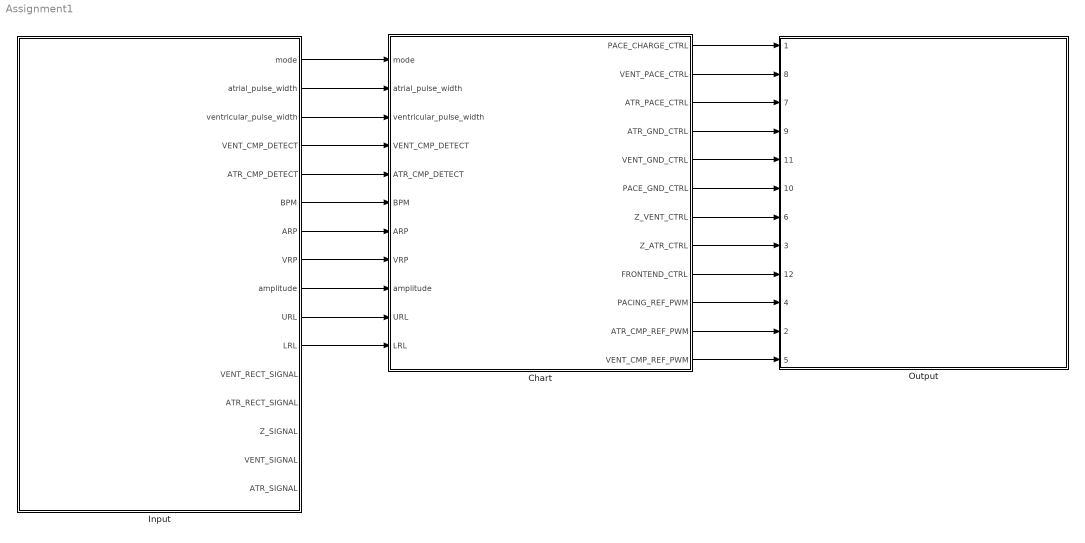
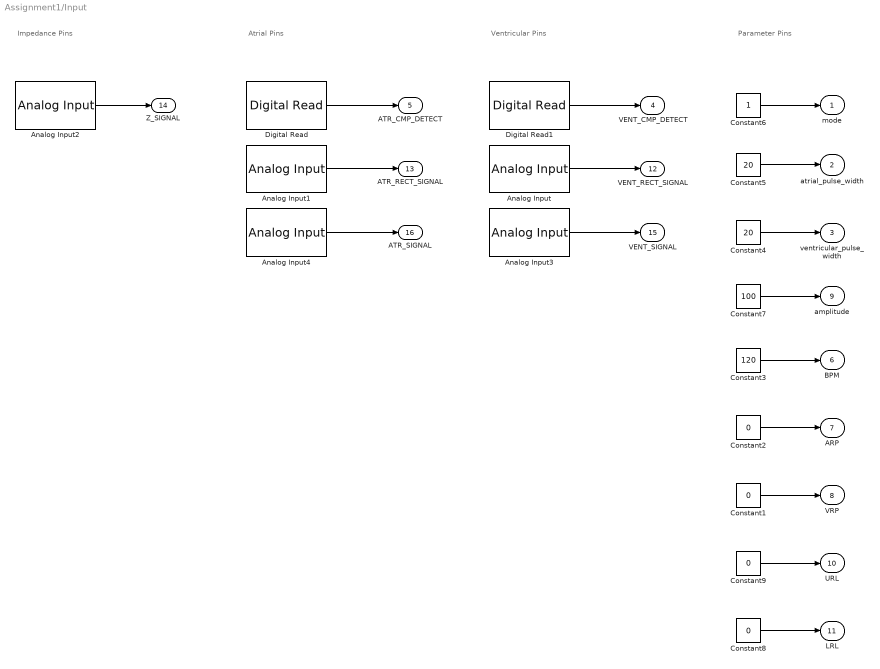
== stateflow chart Assignment1/Chart ==
  state AAI
    state delay
    state AOO_Charge
      entry:
      PACING_REF_PWM = amplitude;
      ATR_CMP_REF_PWM = 70;
      PACE_CHARGE_CTRL = 1;
      PACE_GND_CTRL = 1;
      ATR_PACE_CTRL = 0;
      ATR_GND_CTRL = 1;
      VENT_PACE_CTRL = 0;
      VENT_GND_CTRL = 0;
      Z_ATR_CTRL = 0;
      Z_VENT_CTRL =0;
      FRONTEND_CTRL = 0;
    state sense
      entry:
      FRONTEND_CTRL = 1;
    state Atrial_Pacing
      entry:
      PACING_REF_PWM = amplitude;
      ATR_CMP_REF_PWM = 70;
      PACE_CHARGE_CTRL = 0;
      PACE_GND_CTRL = 1;
      ATR_PACE_CTRL = 1;
      ATR_GND_CTRL = 0;
      VENT_PACE_CTRL = 0;
      VENT_GND_CTRL = 0;
      Z_ATR_CTRL = 0;
      Z_VENT_CTRL = 0;
    (default) -> AAI.AOO_Charge
    AAI.delay -> AAI.sense : [after(ARP,msec)]
    AAI.sense -> AAI.delay [order 1] : [ATR_CMP_DETECT == 1]
    AAI.AOO_Charge -> AAI.sense
    AAI.sense -> AAI.Atrial_Pacing [order 2] : [after((60000/BPM) - atrial_pulse_width + ARP,msec) && ATR_CMP_DETECT == 0]
    AAI.Atrial_Pacing -> AAI.AOO_Charge : [after(atrial_pulse_width,msec)]
  state VVI
    state delay
    state VVI_Charge
      entry:
      PACING_REF_PWM = amplitude;
      VENT_CMP_REF_PWM = 70;
      PACE_CHARGE_CTRL = 1;
      PACE_GND_CTRL = 1;
      ATR_PACE_CTRL = 0;
      ATR_GND_CTRL = 0;
      VENT_PACE_CTRL = 0;
      VENT_GND_CTRL = 1;
      Z_ATR_CTRL = 0;
      Z_VENT_CTRL =0;
    state sense
      entry:
      FRONTEND_CTRL = 1;
    state Ventricular_Pacing
      entry:
      PACING_REF_PWM = amplitude;
      VENT_CMP_REF_PWM = 70;
      PACE_CHARGE_CTRL = 0;
      PACE_GND_CTRL = 1;
      ATR_PACE_CTRL = 0;
      ATR_GND_CTRL = 0;
      Z_ATR_CTRL = 0;
      Z_VENT_CTRL = 0;
      VENT_PACE_CTRL = 1;
      VENT_GND_CTRL = 0;
    (default) -> VVI_Charge
    VVI.delay -> VVI.sense : [after(VRP,msec)]
    VVI.sense -> VVI.delay [order 1] : [VENT_CMP_DETECT == 1]
    VVI_Charge -> VVI.sense
    VVI.sense -> VVI.Ventricular_Pacing [order 2] : [after((60000/BPM) - ventricular_pulse_width + VRP + URL,msec) && VENT_CMP_DETECT == 0]
    VVI.Ventricular_Pacing -> VVI_Charge : [after(ventricular_pulse_width,msec)]
  state AOO
    state AOO_Charge
      entry:
      PACING_REF_PWM = amplitude;
      ATR_CMP_REF_PWM = 70;
      PACE_CHARGE_CTRL = 1;
      PACE_GND_CTRL = 1;
      ATR_PACE_CTRL = 0;
      ATR_GND_CTRL = 1;
      VENT_PACE_CTRL = 0;
      VENT_GND_CTRL = 0;
      Z_ATR_CTRL = 0;
      Z_VENT_CTRL =0;
      FRONTEND_CTRL = 0;
    state Atrial_Pacing
      entry:
      PACING_REF_PWM = amplitude;
      ATR_CMP_REF_PWM = 70;
      PACE_CHARGE_CTRL = 0;
      PACE_GND_CTRL = 1;
      ATR_PACE_CTRL = 1;
      ATR_GND_CTRL = 0;
      VENT_PACE_CTRL = 0;
      VENT_GND_CTRL = 0;
      Z_ATR_CTRL = 0;
      Z_VENT_CTRL = 0;
    (default) -> AOO.AOO_Charge
    AOO.AOO_Charge -> AOO.Atrial_Pacing : [after((60000/BPM) - atrial_pulse_width,msec)]
    AOO.Atrial_Pacing -> AOO.AOO_Charge : [after(atrial_pulse_width,msec)]
  state OFF
    entry:
    ATR_PACE_CTRL = 0;
    VENT_PACE_CTRL = 0;
  state VOO
    state VOO_Charge
      entry:
      PACING_REF_PWM = amplitude;
      VENT_CMP_REF_PWM = 70;
      PACE_CHARGE_CTRL = 1;
      PACE_GND_CTRL = 1;
      ATR_PACE_CTRL = 0;
      ATR_GND_CTRL = 0;
      VENT_PACE_CTRL = 0;
      VENT_GND_CTRL = 1;
      Z_ATR_CTRL = 0;
      Z_VENT_CTRL =0;
      FRONTEND_CTRL = 0;
    state Ventricular_Pacing
      entry:
      PACING_REF_PWM = amplitude;
      VENT_CMP_REF_PWM = 70;
      PACE_CHARGE_CTRL = 0;
      PACE_GND_CTRL = 1;
      ATR_PACE_CTRL = 0;
      ATR_GND_CTRL = 0;
      Z_ATR_CTRL = 0;
      Z_VENT_CTRL = 0;
      VENT_PACE_CTRL = 1;
      VENT_GND_CTRL = 0;
    (default) -> VOO_Charge
    VOO_Charge -> VOO.Ventricular_Pacing : [after((60000/BPM) - ventricular_pulse_width +LRL,msec)]
    VOO.Ventricular_Pacing -> VOO_Charge : [after(ventricular_pulse_width,msec)]
  AAI -> OFF : [mode ~= 3]
  OFF -> AAI [order 1] : [mode == 3]
  (default) -> OFF
  AOO -> OFF : [mode ~= 1]
  OFF -> VVI [order 3] : [mode == 4]
  OFF -> AOO [order 2] : [mode == 1]
  VVI -> OFF : [mode ~= 4]
  VOO -> OFF : [mode ~= 2]
  OFF -> VOO [order 4] : [mode == 2]
  data: PACE_CHARGE_CTRL output; VENT_PACE_CTRL output; ATR_PACE_CTRL output; ATR_GND_CTRL output; VENT_GND_CTRL output; PACE_GND_CTRL output; mode input; Z_VENT_CTRL output; Z_ATR_CTRL output; atrial_pulse_width input; ventricular_pulse_width input; VENT_CMP_DETECT input; ATR_CMP_DETECT input; FRONTEND_CTRL output; BPM input; PACING_REF_PWM output; ATR_CMP_REF_PWM output; VENT_CMP_REF_PWM output; ARP input; VRP input; amplitude input; URL input; LRL input

/*
 * Academic License - for use in teaching, academic research, and meeting
 * course requirements at degree granting institutions only.  Not for
 * government, commercial, or other organizational use.
 *
 * File: Assignment1.c
 *
 * Code generated for Simulink model 'Assignment1'.
 *
 * Model version                  : 1.48
 * Simulink Coder version         : 9.3 (R2020a) 18-Nov-2019
 * C/C++ source code generated on : Fri Oct 25 00:59:22 2024
 *
 * Target selection: ert.tlc
 * Embedded hardware selection: ARM Compatible->ARM Cortex
 * Code generation objectives: Unspecified
 * Validation result: Not run
 */

#include "Assignment1.h"
#include "Assignment1_private.h"

/* Named constants for Chart: '<Root>/Chart' */
#define Assignmen_IN_Ventricular_Pacing ((uint8_T)2U)
#define Assignment1_IN_AAI             ((uint8_T)1U)
#define Assignment1_IN_AOO             ((uint8_T)2U)
#define Assignment1_IN_AOO_Charge      ((uint8_T)1U)
#define Assignment1_IN_Atrial_Pacing   ((uint8_T)2U)
#define Assignment1_IN_NO_ACTIVE_CHILD ((uint8_T)0U)
#define Assignment1_IN_OFF             ((uint8_T)3U)
#define Assignment1_IN_VOO             ((uint8_T)4U)
#define Assignment1_IN_VOO_Charge      ((uint8_T)1U)
#define Assignment1_IN_VVI             ((uint8_T)5U)
#define Assignment1_IN_VVI_Charge      ((uint8_T)1U)
#define Assignment1_IN_delay           ((uint8_T)3U)
#define Assignment1_IN_sense           ((uint8_T)4U)

/* Block signals (default storage) */
B_Assignment1_T Assignment1_B;

/* Block states (default storage) */
DW_Assignment1_T Assignment1_DW;

/* Real-time model */
RT_MODEL_Assignment1_T Assignment1_M_;
RT_MODEL_Assignment1_T *const Assignment1_M = &Assignment1_M_;

/* Forward declaration for local functions */
static void Assignm_enter_atomic_AOO_Charge(void);
static void Assignment1_AAI(const boolean_T *DigitalRead);
static void Assignment1_AOO(void);
static void Assignm_enter_atomic_VOO_Charge(void);
static void Assign_SystemCore_release_j3b1w(const
  freedomk64f_DigitalRead_Assig_T *obj);
static void Assignm_SystemCore_delete_j3b1w(const
  freedomk64f_DigitalRead_Assig_T *obj);
static void matlabCodegenHandle_matla_j3b1w(freedomk64f_DigitalRead_Assig_T *obj);
static void Assi_SystemCore_release_j3b1wei(const
  freedomk64f_DigitalWrite_Assi_T *obj);
static void Assig_SystemCore_delete_j3b1wei(const
  freedomk64f_DigitalWrite_Assi_T *obj);
static void matlabCodegenHandle_mat_j3b1wei(freedomk64f_DigitalWrite_Assi_T *obj);
static void SystemCore_relea_j3b1wei5ggv3l5(const
  freedomk64f_PWMOutput_Assignm_T *obj);
static void SystemCore_delet_j3b1wei5ggv3l5(const
  freedomk64f_PWMOutput_Assignm_T *obj);
static void matlabCodegenHan_j3b1wei5ggv3l5(freedomk64f_PWMOutput_Assignm_T *obj);
static void Assignment1_SystemCore_release(const freedomk64f_AnalogInput_Assig_T
  *obj);
static void Assignment1_SystemCore_delete(const freedomk64f_AnalogInput_Assig_T *
  obj);
static void matlabCodegenHandle_matlabCodeg(freedomk64f_AnalogInput_Assig_T *obj);

/* Function for Chart: '<Root>/Chart' */
static void Assignm_enter_atomic_AOO_Charge(void)
{
  /* Constant: '<S2>/Constant7' */
  Assignment1_B.PACING_REF_PWM = Assignment1_P.Constant7_Value;
  Assignment1_B.ATR_CMP_REF_PWM = 70.0;
  Assignment1_B.PACE_CHARGE_CTRL = 1.0;
  Assignment1_B.PACE_GND_CTRL = 1.0;
  Assignment1_B.ATR_PACE_CTRL = 0.0;
  Assignment1_B.ATR_GND_CTRL = 1.0;
  Assignment1_B.VENT_PACE_CTRL = 0.0;
  Assignment1_B.VENT_GND_CTRL = 0.0;
  Assignment1_B.Z_ATR_CTRL = 0.0;
  Assignment1_B.Z_VENT_CTRL = 0.0;
  Assignment1_B.FRONTEND_CTRL = 0.0;
}

/* Function for Chart: '<Root>/Chart' */
static void Assignment1_AAI(const boolean_T *DigitalRead)
{
  boolean_T sf_internal_predicateOutput;

  /* Constant: '<S2>/Constant6' incorporates:
   *  Constant: '<S2>/Constant2'
   *  Constant: '<S2>/Constant3'
   *  Constant: '<S2>/Constant5'
   */
  if (Assignment1_P.Constant6_Value != 3.0) {
    Assignment1_DW.is_AAI = Assignment1_IN_NO_ACTIVE_CHILD;
    Assignment1_DW.is_c3_Assignment1 = Assignment1_IN_OFF;
    Assignment1_B.ATR_PACE_CTRL = 0.0;
    Assignment1_B.VENT_PACE_CTRL = 0.0;
  } else {
    switch (Assignment1_DW.is_AAI) {
     case Assignment1_IN_AOO_Charge:
      Assignment1_B.ATR_CMP_REF_PWM = 70.0;
      Assignment1_B.PACE_CHARGE_CTRL = 1.0;
      Assignment1_B.PACE_GND_CTRL = 1.0;
      Assignment1_B.ATR_PACE_CTRL = 0.0;
      Assignment1_B.ATR_GND_CTRL = 1.0;
      Assignment1_B.VENT_PACE_CTRL = 0.0;
      Assignment1_B.VENT_GND_CTRL = 0.0;
      Assignment1_B.Z_ATR_CTRL = 0.0;
      Assignment1_B.Z_VENT_CTRL = 0.0;
      Assignment1_DW.is_AAI = Assignment1_IN_sense;
      Assignment1_DW.temporalCounter_i1 = 0U;
      Assignment1_B.FRONTEND_CTRL = 1.0;
      break;

     case Assignment1_IN_Atrial_Pacing:
      Assignment1_B.ATR_CMP_REF_PWM = 70.0;
      Assignment1_B.PACE_CHARGE_CTRL = 0.0;
      Assignment1_B.PACE_GND_CTRL = 1.0;
      Assignment1_B.ATR_PACE_CTRL = 1.0;
      Assignment1_B.ATR_GND_CTRL = 0.0;
      Assignment1_B.VENT_PACE_CTRL = 0.0;
      Assignment1_B.VENT_GND_CTRL = 0.0;
      Assignment1_B.Z_ATR_CTRL = 0.0;
      Assignment1_B.Z_VENT_CTRL = 0.0;

      /* Constant: '<S2>/Constant5' */
      if (Assignment1_DW.temporalCounter_i1 >= (uint32_T)ceil
          (Assignment1_P.Constant5_Value)) {
        Assignment1_DW.is_AAI = Assignment1_IN_AOO_Charge;
        Assignm_enter_atomic_AOO_Charge();
      }
      break;

     case Assignment1_IN_delay:
      /* Constant: '<S2>/Constant2' */
      if (Assignment1_DW.temporalCounter_i1 >= (uint32_T)ceil
          (Assignment1_P.Constant2_Value)) {
        Assignment1_DW.is_AAI = Assignment1_IN_sense;
        Assignment1_DW.temporalCounter_i1 = 0U;
        Assignment1_B.FRONTEND_CTRL = 1.0;
      }
      break;

     default:
      /* case IN_sense: */
      Assignment1_B.FRONTEND_CTRL = 1.0;
      if (*DigitalRead) {
        Assignment1_DW.is_AAI = Assignment1_IN_delay;
        Assignment1_DW.temporalCounter_i1 = 0U;
      } else {
        if (Assignment1_DW.temporalCounter_i1 >= (uint32_T)ceil((60000.0 /
              Assignment1_P.Constant3_Value - Assignment1_P.Constant5_Value) +
             Assignment1_P.Constant2_Value)) {
          sf_internal_predicateOutput = !*DigitalRead;
        } else {
          sf_internal_predicateOutput = false;
        }

        if (sf_internal_predicateOutput) {
          Assignment1_DW.is_AAI = Assignment1_IN_Atrial_Pacing;
          Assignment1_DW.temporalCounter_i1 = 0U;

          /* Constant: '<S2>/Constant7' */
          Assignment1_B.PACING_REF_PWM = Assignment1_P.Constant7_Value;
          Assignment1_B.ATR_CMP_REF_PWM = 70.0;
          Assignment1_B.PACE_CHARGE_CTRL = 0.0;
          Assignment1_B.PACE_GND_CTRL = 1.0;
          Assignment1_B.ATR_PACE_CTRL = 1.0;
          Assignment1_B.ATR_GND_CTRL = 0.0;
          Assignment1_B.VENT_PACE_CTRL = 0.0;
          Assignment1_B.VENT_GND_CTRL = 0.0;
          Assignment1_B.Z_ATR_CTRL = 0.0;
          Assignment1_B.Z_VENT_CTRL = 0.0;
        }
      }
      break;
    }
  }

  /* End of Constant: '<S2>/Constant6' */
}

/* Function for Chart: '<Root>/Chart' */
static void Assignment1_AOO(void)
{
  /* Constant: '<S2>/Constant6' */
  if (Assignment1_P.Constant6_Value != 1.0) {
    Assignment1_DW.is_AOO = Assignment1_IN_NO_ACTIVE_CHILD;
    Assignment1_DW.is_c3_Assignment1 = Assignment1_IN_OFF;
    Assignment1_B.ATR_PACE_CTRL = 0.0;
    Assignment1_B.VENT_PACE_CTRL = 0.0;
  } else if (Assignment1_DW.is_AOO == Assignment1_IN_AOO_Charge) {
    Assignment1_B.ATR_CMP_REF_PWM = 70.0;
    Assignment1_B.PACE_CHARGE_CTRL = 1.0;
    Assignment1_B.PACE_GND_CTRL = 1.0;
    Assignment1_B.ATR_PACE_CTRL = 0.0;
    Assignment1_B.ATR_GND_CTRL = 1.0;
    Assignment1_B.VENT_PACE_CTRL = 0.0;
    Assignment1_B.VENT_GND_CTRL = 0.0;
    Assignment1_B.Z_ATR_CTRL = 0.0;
    Assignment1_B.Z_VENT_CTRL = 0.0;
    Assignment1_B.FRONTEND_CTRL = 0.0;

    /* Constant: '<S2>/Constant3' incorporates:
     *  Constant: '<S2>/Constant5'
     */
    if (Assignment1_DW.temporalCounter_i1 >= (uint32_T)ceil(60000.0 /
         Assignment1_P.Constant3_Value - Assignment1_P.Constant5_Value)) {
      Assignment1_DW.is_AOO = Assignment1_IN_Atrial_Pacing;
      Assignment1_DW.temporalCounter_i1 = 0U;

      /* Constant: '<S2>/Constant7' */
      Assignment1_B.PACING_REF_PWM = Assignment1_P.Constant7_Value;
      Assignment1_B.ATR_CMP_REF_PWM = 70.0;
      Assignment1_B.PACE_CHARGE_CTRL = 0.0;
      Assignment1_B.PACE_GND_CTRL = 1.0;
      Assignment1_B.ATR_PACE_CTRL = 1.0;
      Assignment1_B.ATR_GND_CTRL = 0.0;
      Assignment1_B.VENT_PACE_CTRL = 0.0;
      Assignment1_B.VENT_GND_CTRL = 0.0;
      Assignment1_B.Z_ATR_CTRL = 0.0;
      Assignment1_B.Z_VENT_CTRL = 0.0;
    }

    /* End of Constant: '<S2>/Constant3' */
  } else {
    /* case IN_Atrial_Pacing: */
    Assignment1_B.ATR_CMP_REF_PWM = 70.0;
    Assignment1_B.PACE_CHARGE_CTRL = 0.0;
    Assignment1_B.PACE_GND_CTRL = 1.0;
    Assignment1_B.ATR_PACE_CTRL = 1.0;
    Assignment1_B.ATR_GND_CTRL = 0.0;
    Assignment1_B.VENT_PACE_CTRL = 0.0;
    Assignment1_B.VENT_GND_CTRL = 0.0;
    Assignment1_B.Z_ATR_CTRL = 0.0;
    Assignment1_B.Z_VENT_CTRL = 0.0;

    /* Constant: '<S2>/Constant5' */
    if (Assignment1_DW.temporalCounter_i1 >= (uint32_T)ceil
        (Assignment1_P.Constant5_Value)) {
      Assignment1_DW.is_AOO = Assignment1_IN_AOO_Charge;
      Assignment1_DW.temporalCounter_i1 = 0U;
      Assignm_enter_atomic_AOO_Charge();
    }
  }

  /* End of Constant: '<S2>/Constant6' */
}

/* Function for Chart: '<Root>/Chart' */
static void Assignm_enter_atomic_VOO_Charge(void)
{
  /* Constant: '<S2>/Constant7' */
  Assignment1_B.PACING_REF_PWM = Assignment1_P.Constant7_Value;
  Assignment1_B.VENT_CMP_REF_PWM = 70.0;
  Assignment1_B.PACE_CHARGE_CTRL = 1.0;
  Assignment1_B.PACE_GND_CTRL = 1.0;
  Assignment1_B.ATR_PACE_CTRL = 0.0;
  Assignment1_B.ATR_GND_CTRL = 0.0;
  Assignment1_B.VENT_PACE_CTRL = 0.0;
  Assignment1_B.VENT_GND_CTRL = 1.0;
  Assignment1_B.Z_ATR_CTRL = 0.0;
  Assignment1_B.Z_VENT_CTRL = 0.0;
  Assignment1_B.FRONTEND_CTRL = 0.0;
}

static void Assign_SystemCore_release_j3b1w(const
  freedomk64f_DigitalRead_Assig_T *obj)
{
  if ((obj->isInitialized == 1) && obj->isSetupComplete) {
    MW_digitalIO_close(obj->MW_DIGITALIO_HANDLE);
  }
}

static void Assignm_SystemCore_delete_j3b1w(const
  freedomk64f_DigitalRead_Assig_T *obj)
{
  Assign_SystemCore_release_j3b1w(obj);
}

static void matlabCodegenHandle_matla_j3b1w(freedomk64f_DigitalRead_Assig_T *obj)
{
  if (!obj->matlabCodegenIsDeleted) {
    obj->matlabCodegenIsDeleted = true;
    Assignm_SystemCore_delete_j3b1w(obj);
  }
}

static void Assi_SystemCore_release_j3b1wei(const
  freedomk64f_DigitalWrite_Assi_T *obj)
{
  if ((obj->isInitialized == 1) && obj->isSetupComplete) {
    MW_digitalIO_close(obj->MW_DIGITALIO_HANDLE);
  }
}

static void Assig_SystemCore_delete_j3b1wei(const
  freedomk64f_DigitalWrite_Assi_T *obj)
{
  Assi_SystemCore_release_j3b1wei(obj);
}

static void matlabCodegenHandle_mat_j3b1wei(freedomk64f_DigitalWrite_Assi_T *obj)
{
  if (!obj->matlabCodegenIsDeleted) {
    obj->matlabCodegenIsDeleted = true;
    Assig_SystemCore_delete_j3b1wei(obj);
  }
}

static void SystemCore_relea_j3b1wei5ggv3l5(const
  freedomk64f_PWMOutput_Assignm_T *obj)
{
  if ((obj->isInitialized == 1) && obj->isSetupComplete) {
    MW_PWM_Stop(obj->MW_PWM_HANDLE);
    MW_PWM_Close(obj->MW_PWM_HANDLE);
  }
}

static void SystemCore_delet_j3b1wei5ggv3l5(const
  freedomk64f_PWMOutput_Assignm_T *obj)
{
  SystemCore_relea_j3b1wei5ggv3l5(obj);
}

static void matlabCodegenHan_j3b1wei5ggv3l5(freedomk64f_PWMOutput_Assignm_T *obj)
{
  if (!obj->matlabCodegenIsDeleted) {
    obj->matlabCodegenIsDeleted = true;
    SystemCore_delet_j3b1wei5ggv3l5(obj);
  }
}

static void Assignment1_SystemCore_release(const freedomk64f_AnalogInput_Assig_T
  *obj)
{
  if ((obj->isInitialized == 1) && obj->isSetupComplete) {
    MW_AnalogIn_Stop(obj->MW_ANALOGIN_HANDLE);
    MW_AnalogIn_Close(obj->MW_ANALOGIN_HANDLE);
  }
}

static void Assignment1_SystemCore_delete(const freedomk64f_AnalogInput_Assig_T *
  obj)
{
  Assignment1_SystemCore_release(obj);
}

static void matlabCodegenHandle_matlabCodeg(freedomk64f_AnalogInput_Assig_T *obj)
{
  if (!obj->matlabCodegenIsDeleted) {
    obj->matlabCodegenIsDeleted = true;
    Assignment1_SystemCore_delete(obj);
  }
}

/* Model step function */
void Assignment1_step(void)
{
  boolean_T tmp;
  real_T tmp_0;
  boolean_T DigitalRead;

  /* MATLABSystem: '<S2>/Digital Read1' */
  if (Assignment1_DW.obj_k1.SampleTime != Assignment1_P.DigitalRead1_SampleTime)
  {
    Assignment1_DW.obj_k1.SampleTime = Assignment1_P.DigitalRead1_SampleTime;
  }

  tmp = MW_digitalIO_read(Assignment1_DW.obj_k1.MW_DIGITALIO_HANDLE);

  /* MATLABSystem: '<S2>/Digital Read' */
  if (Assignment1_DW.obj_g.SampleTime != Assignment1_P.DigitalRead_SampleTime) {
    Assignment1_DW.obj_g.SampleTime = Assignment1_P.DigitalRead_SampleTime;
  }

  DigitalRead = MW_digitalIO_read(Assignment1_DW.obj_g.MW_DIGITALIO_HANDLE);

  /* End of MATLABSystem: '<S2>/Digital Read' */

  /* Chart: '<Root>/Chart' incorporates:
   *  Constant: '<S2>/Constant1'
   *  Constant: '<S2>/Constant3'
   *  Constant: '<S2>/Constant4'
   *  Constant: '<S2>/Constant6'
   *  Constant: '<S2>/Constant7'
   *  Constant: '<S2>/Constant8'
   *  Constant: '<S2>/Constant9'
   *  MATLABSystem: '<S2>/Digital Read1'
   */
  if (Assignment1_DW.temporalCounter_i1 < MAX_uint32_T) {
    Assignment1_DW.temporalCounter_i1++;
  }

  if (Assignment1_DW.is_active_c3_Assignment1 == 0U) {
    Assignment1_DW.is_active_c3_Assignment1 = 1U;
    Assignment1_DW.is_c3_Assignment1 = Assignment1_IN_OFF;
    Assignment1_B.ATR_PACE_CTRL = 0.0;
    Assignment1_B.VENT_PACE_CTRL = 0.0;
  } else {
    switch (Assignment1_DW.is_c3_Assignment1) {
     case Assignment1_IN_AAI:
      Assignment1_AAI(&DigitalRead);
      break;

     case Assignment1_IN_AOO:
      Assignment1_AOO();
      break;

     case Assignment1_IN_OFF:
      Assignment1_B.ATR_PACE_CTRL = 0.0;
      Assignment1_B.VENT_PACE_CTRL = 0.0;
      if (Assignment1_P.Constant6_Value == 3.0) {
        Assignment1_DW.is_c3_Assignment1 = Assignment1_IN_AAI;
        Assignment1_DW.is_AAI = Assignment1_IN_AOO_Charge;
        Assignm_enter_atomic_AOO_Charge();
      } else if (Assignment1_P.Constant6_Value == 1.0) {
        Assignment1_DW.is_c3_Assignment1 = Assignment1_IN_AOO;
        Assignment1_DW.is_AOO = Assignment1_IN_AOO_Charge;
        Assignment1_DW.temporalCounter_i1 = 0U;
        Assignm_enter_atomic_AOO_Charge();
      } else if (Assignment1_P.Constant6_Value == 4.0) {
        Assignment1_DW.is_c3_Assignment1 = Assignment1_IN_VVI;
        Assignment1_DW.is_VVI = Assignment1_IN_VVI_Charge;
        Assignment1_B.PACING_REF_PWM = Assignment1_P.Constant7_Value;
        Assignment1_B.VENT_CMP_REF_PWM = 70.0;
        Assignment1_B.PACE_CHARGE_CTRL = 1.0;
        Assignment1_B.PACE_GND_CTRL = 1.0;
        Assignment1_B.ATR_PACE_CTRL = 0.0;
        Assignment1_B.ATR_GND_CTRL = 0.0;
        Assignment1_B.VENT_PACE_CTRL = 0.0;
        Assignment1_B.VENT_GND_CTRL = 1.0;
        Assignment1_B.Z_ATR_CTRL = 0.0;
        Assignment1_B.Z_VENT_CTRL = 0.0;
      } else {
        if (Assignment1_P.Constant6_Value == 2.0) {
          Assignment1_DW.is_c3_Assignment1 = Assignment1_IN_VOO;
          Assignment1_DW.is_VOO = Assignment1_IN_VOO_Charge;
          Assignment1_DW.temporalCounter_i1 = 0U;
          Assignm_enter_atomic_VOO_Charge();
        }
      }
      break;

     case Assignment1_IN_VOO:
      if (Assignment1_P.Constant6_Value != 2.0) {
        Assignment1_DW.is_VOO = Assignment1_IN_NO_ACTIVE_CHILD;
        Assignment1_DW.is_c3_Assignment1 = Assignment1_IN_OFF;
        Assignment1_B.ATR_PACE_CTRL = 0.0;
        Assignment1_B.VENT_PACE_CTRL = 0.0;
      } else if (Assignment1_DW.is_VOO == Assignment1_IN_VOO_Charge) {
        Assignment1_B.VENT_CMP_REF_PWM = 70.0;
        Assignment1_B.PACE_CHARGE_CTRL = 1.0;
        Assignment1_B.PACE_GND_CTRL = 1.0;
        Assignment1_B.ATR_PACE_CTRL = 0.0;
        Assignment1_B.ATR_GND_CTRL = 0.0;
        Assignment1_B.VENT_PACE_CTRL = 0.0;
        Assignment1_B.VENT_GND_CTRL = 1.0;
        Assignment1_B.Z_ATR_CTRL = 0.0;
        Assignment1_B.Z_VENT_CTRL = 0.0;
        Assignment1_B.FRONTEND_CTRL = 0.0;
        if (Assignment1_DW.temporalCounter_i1 >= (uint32_T)ceil((60000.0 /
              Assignment1_P.Constant3_Value - Assignment1_P.Constant4_Value) +
             Assignment1_P.Constant8_Value)) {
          Assignment1_DW.is_VOO = Assignmen_IN_Ventricular_Pacing;
          Assignment1_DW.temporalCounter_i1 = 0U;
          Assignment1_B.PACING_REF_PWM = Assignment1_P.Constant7_Value;
          Assignment1_B.VENT_CMP_REF_PWM = 70.0;
          Assignment1_B.PACE_CHARGE_CTRL = 0.0;
          Assignment1_B.PACE_GND_CTRL = 1.0;
          Assignment1_B.ATR_PACE_CTRL = 0.0;
          Assignment1_B.ATR_GND_CTRL = 0.0;
          Assignment1_B.Z_ATR_CTRL = 0.0;
          Assignment1_B.Z_VENT_CTRL = 0.0;
          Assignment1_B.VENT_PACE_CTRL = 1.0;
          Assignment1_B.VENT_GND_CTRL = 0.0;
        }
      } else {
        /* case IN_Ventricular_Pacing: */
        Assignment1_B.VENT_CMP_REF_PWM = 70.0;
        Assignment1_B.PACE_CHARGE_CTRL = 0.0;
        Assignment1_B.PACE_GND_CTRL = 1.0;
        Assignment1_B.ATR_PACE_CTRL = 0.0;
        Assignment1_B.ATR_GND_CTRL = 0.0;
        Assignment1_B.Z_ATR_CTRL = 0.0;
        Assignment1_B.Z_VENT_CTRL = 0.0;
        Assignment1_B.VENT_PACE_CTRL = 1.0;
        Assignment1_B.VENT_GND_CTRL = 0.0;
        if (Assignment1_DW.temporalCounter_i1 >= (uint32_T)ceil
            (Assignment1_P.Constant4_Value)) {
          Assignment1_DW.is_VOO = Assignment1_IN_VOO_Charge;
          Assignment1_DW.temporalCounter_i1 = 0U;
          Assignm_enter_atomic_VOO_Charge();
        }
      }
      break;

     default:
      /* case IN_VVI: */
      if (Assignment1_P.Constant6_Value != 4.0) {
        Assignment1_DW.is_VVI = Assignment1_IN_NO_ACTIVE_CHILD;
        Assignment1_DW.is_c3_Assignment1 = Assignment1_IN_OFF;
        Assignment1_B.ATR_PACE_CTRL = 0.0;
        Assignment1_B.VENT_PACE_CTRL = 0.0;
      } else {
        switch (Assignment1_DW.is_VVI) {
         case Assignment1_IN_VVI_Charge:
          Assignment1_B.VENT_CMP_REF_PWM = 70.0;
          Assignment1_B.PACE_CHARGE_CTRL = 1.0;
          Assignment1_B.PACE_GND_CTRL = 1.0;
          Assignment1_B.ATR_PACE_CTRL = 0.0;
          Assignment1_B.ATR_GND_CTRL = 0.0;
          Assignment1_B.VENT_PACE_CTRL = 0.0;
          Assignment1_B.VENT_GND_CTRL = 1.0;
          Assignment1_B.Z_ATR_CTRL = 0.0;
          Assignment1_B.Z_VENT_CTRL = 0.0;
          Assignment1_DW.is_VVI = Assignment1_IN_sense;
          Assignment1_DW.temporalCounter_i1 = 0U;
          Assignment1_B.FRONTEND_CTRL = 1.0;
          break;

         case Assignmen_IN_Ventricular_Pacing:
          Assignment1_B.VENT_CMP_REF_PWM = 70.0;
          Assignment1_B.PACE_CHARGE_CTRL = 0.0;
          Assignment1_B.PACE_GND_CTRL = 1.0;
          Assignment1_B.ATR_PACE_CTRL = 0.0;
          Assignment1_B.ATR_GND_CTRL = 0.0;
          Assignment1_B.Z_ATR_CTRL = 0.0;
          Assignment1_B.Z_VENT_CTRL = 0.0;
          Assignment1_B.VENT_PACE_CTRL = 1.0;
          Assignment1_B.VENT_GND_CTRL = 0.0;
          if (Assignment1_DW.temporalCounter_i1 >= (uint32_T)ceil
              (Assignment1_P.Constant4_Value)) {
            Assignment1_DW.is_VVI = Assignment1_IN_VVI_Charge;
            Assignment1_B.PACING_REF_PWM = Assignment1_P.Constant7_Value;
            Assignment1_B.VENT_CMP_REF_PWM = 70.0;
            Assignment1_B.PACE_CHARGE_CTRL = 1.0;
            Assignment1_B.PACE_GND_CTRL = 1.0;
            Assignment1_B.ATR_PACE_CTRL = 0.0;
            Assignment1_B.ATR_GND_CTRL = 0.0;
            Assignment1_B.VENT_PACE_CTRL = 0.0;
            Assignment1_B.VENT_GND_CTRL = 1.0;
            Assignment1_B.Z_ATR_CTRL = 0.0;
            Assignment1_B.Z_VENT_CTRL = 0.0;
          }
          break;

         case Assignment1_IN_delay:
          if (Assignment1_DW.temporalCounter_i1 >= (uint32_T)ceil
              (Assignment1_P.Constant1_Value)) {
            Assignment1_DW.is_VVI = Assignment1_IN_sense;
            Assignment1_DW.temporalCounter_i1 = 0U;
            Assignment1_B.FRONTEND_CTRL = 1.0;
          }
          break;

         default:
          /* case IN_sense: */
          Assignment1_B.FRONTEND_CTRL = 1.0;
          if (tmp) {
            Assignment1_DW.is_VVI = Assignment1_IN_delay;
            Assignment1_DW.temporalCounter_i1 = 0U;
          } else {
            if (Assignment1_DW.temporalCounter_i1 >= (uint32_T)ceil(((60000.0 /
                   Assignment1_P.Constant3_Value - Assignment1_P.Constant4_Value)
                  + Assignment1_P.Constant1_Value) +
                 Assignment1_P.Constant9_Value)) {
              Assignment1_DW.is_VVI = Assignmen_IN_Ventricular_Pacing;
              Assignment1_DW.temporalCounter_i1 = 0U;
              Assignment1_B.PACING_REF_PWM = Assignment1_P.Constant7_Value;
              Assignment1_B.VENT_CMP_REF_PWM = 70.0;
              Assignment1_B.PACE_CHARGE_CTRL = 0.0;
              Assignment1_B.PACE_GND_CTRL = 1.0;
              Assignment1_B.ATR_PACE_CTRL = 0.0;
              Assignment1_B.ATR_GND_CTRL = 0.0;
              Assignment1_B.Z_ATR_CTRL = 0.0;
              Assignment1_B.Z_VENT_CTRL = 0.0;
              Assignment1_B.VENT_PACE_CTRL = 1.0;
              Assignment1_B.VENT_GND_CTRL = 0.0;
            }
          }
          break;
        }
      }
      break;
    }
  }

  /* End of Chart: '<Root>/Chart' */

  /* MATLABSystem: '<S3>/Digital Write' */
  MW_digitalIO_write(Assignment1_DW.obj_mb.MW_DIGITALIO_HANDLE,
                     Assignment1_B.PACE_CHARGE_CTRL != 0.0);

  /* MATLABSystem: '<S3>/PWM Output' */
  MW_PWM_SetDutyCycle(Assignment1_DW.obj_j.MW_PWM_HANDLE,
                      Assignment1_B.ATR_CMP_REF_PWM);

  /* MATLABSystem: '<S3>/Digital Write1' */
  MW_digitalIO_write(Assignment1_DW.obj_p5.MW_DIGITALIO_HANDLE,
                     Assignment1_B.Z_ATR_CTRL != 0.0);

  /* MATLABSystem: '<S3>/PWM Output1' */
  MW_PWM_SetDutyCycle(Assignment1_DW.obj_f.MW_PWM_HANDLE,
                      Assignment1_B.PACING_REF_PWM);

  /* MATLABSystem: '<S3>/PWM Output2' */
  MW_PWM_SetDutyCycle(Assignment1_DW.obj_pg.MW_PWM_HANDLE,
                      Assignment1_B.VENT_CMP_REF_PWM);

  /* MATLABSystem: '<S3>/Digital Write2' */
  MW_digitalIO_write(Assignment1_DW.obj_l.MW_DIGITALIO_HANDLE,
                     Assignment1_B.Z_VENT_CTRL != 0.0);

  /* MATLABSystem: '<S3>/Digital Write3' */
  MW_digitalIO_write(Assignment1_DW.obj_i.MW_DIGITALIO_HANDLE,
                     Assignment1_B.ATR_PACE_CTRL != 0.0);

  /* MATLABSystem: '<S3>/Digital Write4' */
  MW_digitalIO_write(Assignment1_DW.obj_k0.MW_DIGITALIO_HANDLE,
                     Assignment1_B.VENT_PACE_CTRL != 0.0);

  /* MATLABSystem: '<S3>/Digital Write6' */
  MW_digitalIO_write(Assignment1_DW.obj_o.MW_DIGITALIO_HANDLE,
                     Assignment1_B.ATR_GND_CTRL != 0.0);

  /* MATLABSystem: '<S3>/Digital Write7' */
  MW_digitalIO_write(Assignment1_DW.obj_b.MW_DIGITALIO_HANDLE,
                     Assignment1_B.PACE_GND_CTRL != 0.0);

  /* MATLABSystem: '<S3>/Digital Write5' */
  MW_digitalIO_write(Assignment1_DW.obj_l1.MW_DIGITALIO_HANDLE,
                     Assignment1_B.VENT_GND_CTRL != 0.0);

  /* MATLABSystem: '<S3>/Digital Write8' */
  MW_digitalIO_write(Assignment1_DW.obj_h.MW_DIGITALIO_HANDLE,
                     Assignment1_B.FRONTEND_CTRL != 0.0);

  /* MATLABSystem: '<S2>/Analog Input' */
  if (Assignment1_DW.obj.SampleTime != Assignment1_P.AnalogInput_SampleTime) {
    Assignment1_DW.obj.SampleTime = Assignment1_P.AnalogInput_SampleTime;
  }

  MW_AnalogIn_Start(Assignment1_DW.obj.MW_ANALOGIN_HANDLE);
  MW_AnalogInSingle_ReadResult(Assignment1_DW.obj.MW_ANALOGIN_HANDLE, &tmp_0, 7);

  /* End of MATLABSystem: '<S2>/Analog Input' */

  /* MATLABSystem: '<S2>/Analog Input1' */
  if (Assignment1_DW.obj_p.SampleTime != Assignment1_P.AnalogInput1_SampleTime)
  {
    Assignment1_DW.obj_p.SampleTime = Assignment1_P.AnalogInput1_SampleTime;
  }

  MW_AnalogIn_Start(Assignment1_DW.obj_p.MW_ANALOGIN_HANDLE);
  MW_AnalogInSingle_ReadResult(Assignment1_DW.obj_p.MW_ANALOGIN_HANDLE, &tmp_0,
    7);

  /* End of MATLABSystem: '<S2>/Analog Input1' */

  /* MATLABSystem: '<S2>/Analog Input2' */
  if (Assignment1_DW.obj_m.SampleTime != Assignment1_P.AnalogInput2_SampleTime)
  {
    Assignment1_DW.obj_m.SampleTime = Assignment1_P.AnalogInput2_SampleTime;
  }

  MW_AnalogIn_Start(Assignment1_DW.obj_m.MW_ANALOGIN_HANDLE);
  MW_AnalogInSingle_ReadResult(Assignment1_DW.obj_m.MW_ANALOGIN_HANDLE, &tmp_0,
    7);

  /* End of MATLABSystem: '<S2>/Analog Input2' */

  /* MATLABSystem: '<S2>/Analog Input3' */
  if (Assignment1_DW.obj_k.SampleTime != Assignment1_P.AnalogInput3_SampleTime)
  {
    Assignment1_DW.obj_k.SampleTime = Assignment1_P.AnalogInput3_SampleTime;
  }

  MW_AnalogIn_Start(Assignment1_DW.obj_k.MW_ANALOGIN_HANDLE);
  MW_AnalogInSingle_ReadResult(Assignment1_DW.obj_k.MW_ANALOGIN_HANDLE, &tmp_0,
    7);

  /* End of MATLABSystem: '<S2>/Analog Input3' */

  /* MATLABSystem: '<S2>/Analog Input4' */
  if (Assignment1_DW.obj_py.SampleTime != Assignment1_P.AnalogInput4_SampleTime)
  {
    Assignment1_DW.obj_py.SampleTime = Assignment1_P.AnalogInput4_SampleTime;
  }

  MW_AnalogIn_Start(Assignment1_DW.obj_py.MW_ANALOGIN_HANDLE);
  MW_AnalogInSingle_ReadResult(Assignment1_DW.obj_py.MW_ANALOGIN_HANDLE, &tmp_0,
    7);

  /* End of MATLABSystem: '<S2>/Analog Input4' */
}
